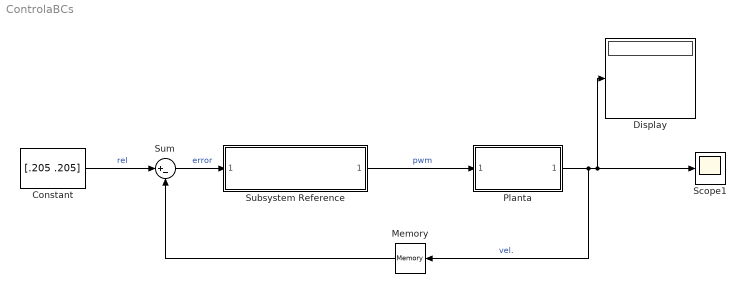
/*
 * Academic License - for use in teaching, academic research, and meeting
 * course requirements at degree granting institutions only.  Not for
 * government, commercial, or other organizational use.
 *
 * File: ControlaBCs.c
 *
 * Code generated for Simulink model 'ControlaBCs'.
 *
 * Model version                  : 1.1
 * Simulink Coder version         : 23.2 (R2023b) 01-Aug-2023
 * C/C++ source code generated on : Sun Dec 17 23:20:50 2023
 *
 * Target selection: ert.tlc
 * Embedded hardware selection: Atmel->AVR
 * Code generation objectives: Unspecified
 * Validation result: Not run
 */

#include "ControlaBCs.h"
#include <math.h>
#include "rt_nonfinite.h"
#include "rtwtypes.h"
#include "ControlaBCs_private.h"

/* Block signals (default storage) */
B_ControlaBCs_T ControlaBCs_B;

/* Continuous states */
X_ControlaBCs_T ControlaBCs_X;

/* Disabled State Vector */
XDis_ControlaBCs_T ControlaBCs_XDis;

/* Block states (default storage) */
DW_ControlaBCs_T ControlaBCs_DW;

/* Real-time model */
static RT_MODEL_ControlaBCs_T ControlaBCs_M_;
RT_MODEL_ControlaBCs_T *const ControlaBCs_M = &ControlaBCs_M_;

/*
 * This function updates continuous states using the ODE3 fixed-step
 * solver algorithm
 */
static void rt_ertODEUpdateContinuousStates(RTWSolverInfo *si )
{
  /* Solver Matrices */
  static const real_T rt_ODE3_A[3] = {
    1.0/2.0, 3.0/4.0, 1.0
  };

  static const real_T rt_ODE3_B[3][3] = {
    { 1.0/2.0, 0.0, 0.0 },

    { 0.0, 3.0/4.0, 0.0 },

    { 2.0/9.0, 1.0/3.0, 4.0/9.0 }
  };

  time_T t = rtsiGetT(si);
  time_T tnew = rtsiGetSolverStopTime(si);
  time_T h = rtsiGetStepSize(si);
  real_T *x = rtsiGetContStates(si);
  ODE3_IntgData *id = (ODE3_IntgData *)rtsiGetSolverData(si);
  real_T *y = id->y;
  real_T *f0 = id->f[0];
  real_T *f1 = id->f[1];
  real_T *f2 = id->f[2];
  real_T hB[3];
  int_T i;
  int_T nXc = 2;
  rtsiSetSimTimeStep(si,MINOR_TIME_STEP);

  /* Save the state values at time t in y, we'll use x as ynew. */
  (void) memcpy(y, x,
                (uint_T)nXc*sizeof(real_T));

  /* Assumes that rtsiSetT and ModelOutputs are up-to-date */
  /* f0 = f(t,y) */
  rtsiSetdX(si, f0);
  ControlaBCs_derivatives();

  /* f(:,2) = feval(odefile, t + hA(1), y + f*hB(:,1), args(:)(*)); */
  hB[0] = h * rt_ODE3_B[0][0];
  for (i = 0; i < nXc; i++) {
    x[i] = y[i] + (f0[i]*hB[0]);
  }

  rtsiSetT(si, t + h*rt_ODE3_A[0]);
  rtsiSetdX(si, f1);
  ControlaBCs_step();
  ControlaBCs_derivatives();

  /* f(:,3) = feval(odefile, t + hA(2), y + f*hB(:,2), args(:)(*)); */
  for (i = 0; i <= 1; i++) {
    hB[i] = h * rt_ODE3_B[1][i];
  }

  for (i = 0; i < nXc; i++) {
    x[i] = y[i] + (f0[i]*hB[0] + f1[i]*hB[1]);
  }

  rtsiSetT(si, t + h*rt_ODE3_A[1]);
  rtsiSetdX(si, f2);
  ControlaBCs_step();
  ControlaBCs_derivatives();

  /* tnew = t + hA(3);
     ynew = y + f*hB(:,3); */
  for (i = 0; i <= 2; i++) {
    hB[i] = h * rt_ODE3_B[2][i];
  }

  for (i = 0; i < nXc; i++) {
    x[i] = y[i] + (f0[i]*hB[0] + f1[i]*hB[1] + f2[i]*hB[2]);
  }

  rtsiSetT(si, tnew);
  rtsiSetSimTimeStep(si,MAJOR_TIME_STEP);
}

/* Model step function */
void ControlaBCs_step(void)
{
  if (rtmIsMajorTimeStep(ControlaBCs_M)) {
    /* set solver stop time */
    rtsiSetSolverStopTime(&ControlaBCs_M->solverInfo,
                          ((ControlaBCs_M->Timing.clockTick0+1)*
      ControlaBCs_M->Timing.stepSize0));
  }                                    /* end MajorTimeStep */

  /* Update absolute time of base rate at minor time step */
  if (rtmIsMinorTimeStep(ControlaBCs_M)) {
    ControlaBCs_M->Timing.t[0] = rtsiGetT(&ControlaBCs_M->solverInfo);
  }

  {
    real_T (*lastU)[2];
    real_T Gain_tmp;
    real_T lastTime;
    real_T rtb_error_idx_0;
    real_T rtb_error_idx_1;
    int16_T rtb_DataTypeConversion_idx_0;
    int16_T rtb_DataTypeConversion_idx_1;
    int16_T y;

    /* MATLABSystem: '<S4>/Encoder' */
    if (ControlaBCs_DW.obj_e.SampleTime != ControlaBCs_P.Encoder_SampleTime) {
      ControlaBCs_DW.obj_e.SampleTime = ControlaBCs_P.Encoder_SampleTime;
    }

    if (ControlaBCs_DW.obj_e.TunablePropsChanged) {
      ControlaBCs_DW.obj_e.TunablePropsChanged = false;
    }

    /* MATLABSystem: '<S4>/Encoder' */
    MW_EncoderRead(ControlaBCs_DW.obj_e.Index, &ControlaBCs_B.Encoder);

    /* MATLABSystem: '<S4>/Encoder1' */
    if (ControlaBCs_DW.obj.SampleTime != ControlaBCs_P.Encoder1_SampleTime) {
      ControlaBCs_DW.obj.SampleTime = ControlaBCs_P.Encoder1_SampleTime;
    }

    if (ControlaBCs_DW.obj.TunablePropsChanged) {
      ControlaBCs_DW.obj.TunablePropsChanged = false;
    }

    /* MATLABSystem: '<S4>/Encoder1' */
    MW_EncoderRead(ControlaBCs_DW.obj.Index, &ControlaBCs_B.Encoder1);

    /* Gain: '<S4>/Gain' */
    Gain_tmp = (real_T)ControlaBCs_P.Gain_Gain * 1.1368683772161603E-13;

    /* Gain: '<S4>/Gain' incorporates:
     *  SignalConversion generated from: '<S4>/Gain'
     */
    ControlaBCs_B.Gain[0] = Gain_tmp * (real_T)ControlaBCs_B.Encoder;
    ControlaBCs_B.Gain[1] = Gain_tmp * (real_T)ControlaBCs_B.Encoder1;
    if (rtmIsMajorTimeStep(ControlaBCs_M)) {
    }

    /* Derivative: '<S4>/Derivative' */
    Gain_tmp = ControlaBCs_M->Timing.t[0];
    if ((ControlaBCs_DW.TimeStampA >= Gain_tmp) && (ControlaBCs_DW.TimeStampB >=
         Gain_tmp)) {
      /* Derivative: '<S4>/Derivative' */
      ControlaBCs_B.Derivative[0] = 0.0;
      ControlaBCs_B.Derivative[1] = 0.0;
    } else {
      lastTime = ControlaBCs_DW.TimeStampA;
      lastU = &ControlaBCs_DW.LastUAtTimeA;
      if (ControlaBCs_DW.TimeStampA < ControlaBCs_DW.TimeStampB) {
        if (ControlaBCs_DW.TimeStampB < Gain_tmp) {
          lastTime = ControlaBCs_DW.TimeStampB;
          lastU = &ControlaBCs_DW.LastUAtTimeB;
        }
      } else if (ControlaBCs_DW.TimeStampA >= Gain_tmp) {
        lastTime = ControlaBCs_DW.TimeStampB;
        lastU = &ControlaBCs_DW.LastUAtTimeB;
      }

      Gain_tmp -= lastTime;

      /* Derivative: '<S4>/Derivative' */
      ControlaBCs_B.Derivative[0] = (ControlaBCs_B.Gain[0] - (*lastU)[0]) /
        Gain_tmp;
      ControlaBCs_B.Derivative[1] = (ControlaBCs_B.Gain[1] - (*lastU)[1]) /
        Gain_tmp;
    }

    /* End of Derivative: '<S4>/Derivative' */
    if (rtmIsMajorTimeStep(ControlaBCs_M)) {
      /* SignalConversion generated from: '<S4>/Mux' */
      ControlaBCs_B.TmpSignalConversionAtTAQSigLogg[0] = ControlaBCs_B.Encoder;
      ControlaBCs_B.TmpSignalConversionAtTAQSigLogg[1] = ControlaBCs_B.Encoder1;

      /* Sum: '<Root>/Sum' incorporates:
       *  Constant: '<Root>/Constant'
       *  Memory: '<Root>/Memory'
       */
      rtb_error_idx_0 = ControlaBCs_P.Constant_Value[0] -
        ControlaBCs_DW.Memory_PreviousInput[0];
      rtb_error_idx_1 = ControlaBCs_P.Constant_Value[1] -
        ControlaBCs_DW.Memory_PreviousInput[1];

      /* Gain: '<S94>/Proportional Gain' */
      ControlaBCs_B.ProportionalGain = ControlaBCs_P.PIDController2_P *
        rtb_error_idx_0;

      /* Gain: '<S46>/Proportional Gain' */
      ControlaBCs_B.ProportionalGain_p = ControlaBCs_P.PIDController1_P *
        rtb_error_idx_1;
    }

    /* Sum: '<S98>/Sum' incorporates:
     *  Integrator: '<S89>/Integrator'
     */
    Gain_tmp = ControlaBCs_B.ProportionalGain + ControlaBCs_X.Integrator_CSTATE;

    /* Saturate: '<S96>/Saturation' */
    if (Gain_tmp > ControlaBCs_P.PIDController2_UpperSaturationL) {
      Gain_tmp = ControlaBCs_P.PIDController2_UpperSaturationL;
    } else if (Gain_tmp < ControlaBCs_P.PIDController2_LowerSaturationL) {
      Gain_tmp = ControlaBCs_P.PIDController2_LowerSaturationL;
    }

    /* DataTypeConversion: '<S1>/Data Type Conversion' incorporates:
     *  Saturate: '<S96>/Saturation'
     */
    Gain_tmp = floor(Gain_tmp);
    if (rtIsNaN(Gain_tmp) || rtIsInf(Gain_tmp)) {
      Gain_tmp = 0.0;
    } else {
      Gain_tmp = fmod(Gain_tmp, 65536.0);
    }

    rtb_DataTypeConversion_idx_0 = Gain_tmp < 0.0 ? -(int16_T)(uint16_T)
      -Gain_tmp : (int16_T)(uint16_T)Gain_tmp;

    /* Sum: '<S50>/Sum' incorporates:
     *  Integrator: '<S41>/Integrator'
     */
    Gain_tmp = ControlaBCs_B.ProportionalGain_p +
      ControlaBCs_X.Integrator_CSTATE_c;

    /* Saturate: '<S48>/Saturation' */
    if (Gain_tmp > ControlaBCs_P.PIDController1_UpperSaturationL) {
      Gain_tmp = ControlaBCs_P.PIDController1_UpperSaturationL;
    } else if (Gain_tmp < ControlaBCs_P.PIDController1_LowerSaturationL) {
      Gain_tmp = ControlaBCs_P.PIDController1_LowerSaturationL;
    }

    /* DataTypeConversion: '<S1>/Data Type Conversion' incorporates:
     *  Saturate: '<S48>/Saturation'
     */
    Gain_tmp = floor(Gain_tmp);
    if (rtIsNaN(Gain_tmp) || rtIsInf(Gain_tmp)) {
      Gain_tmp = 0.0;
    } else {
      Gain_tmp = fmod(Gain_tmp, 65536.0);
    }

    rtb_DataTypeConversion_idx_1 = Gain_tmp < 0.0 ? -(int16_T)(uint16_T)
      -Gain_tmp : (int16_T)(uint16_T)Gain_tmp;

    /* MATLABSystem: '<S5>/Adelante_der' */
    ControlaBCs_DW.obj_k.PWMDriverObj.MW_PWM_HANDLE = MW_PWM_GetHandle(12UL);

    /* Saturate: '<S5>/Saturation2' */
    if (rtb_DataTypeConversion_idx_1 > ControlaBCs_P.Saturation2_UpperSat) {
      y = ControlaBCs_P.Saturation2_UpperSat;
    } else if (rtb_DataTypeConversion_idx_1 < ControlaBCs_P.Saturation2_LowerSat)
    {
      y = ControlaBCs_P.Saturation2_LowerSat;
    } else {
      y = rtb_DataTypeConversion_idx_1;
    }

    /* End of Saturate: '<S5>/Saturation2' */

    /* Start for MATLABSystem: '<S5>/Adelante_der' */
    if (y > 255) {
      y = 255;
    }

    if (y < 0) {
      y = 0;
    }

    /* MATLABSystem: '<S5>/Adelante_der' */
    MW_PWM_SetDutyCycle(ControlaBCs_DW.obj_k.PWMDriverObj.MW_PWM_HANDLE, (real_T)
                        y);

    /* MATLABSystem: '<S5>/Adelante_izq' */
    ControlaBCs_DW.obj_m.PWMDriverObj.MW_PWM_HANDLE = MW_PWM_GetHandle(9UL);

    /* Saturate: '<S5>/Saturation4' */
    if (rtb_DataTypeConversion_idx_0 > ControlaBCs_P.Saturation4_UpperSat) {
      y = ControlaBCs_P.Saturation4_UpperSat;
    } else if (rtb_DataTypeConversion_idx_0 < ControlaBCs_P.Saturation4_LowerSat)
    {
      y = ControlaBCs_P.Saturation4_LowerSat;
    } else {
      y = rtb_DataTypeConversion_idx_0;
    }

    /* End of Saturate: '<S5>/Saturation4' */

    /* Abs: '<S5>/Abs2' */
    if (y < 0) {
      y = -y;
    }

    /* End of Abs: '<S5>/Abs2' */

    /* Start for MATLABSystem: '<S5>/Adelante_izq' */
    if (y > 255) {
      y = 255;
    }

    if (y < 0) {
      y = 0;
    }

    /* MATLABSystem: '<S5>/Adelante_izq' */
    MW_PWM_SetDutyCycle(ControlaBCs_DW.obj_m.PWMDriverObj.MW_PWM_HANDLE, (real_T)
                        y);

    /* MATLABSystem: '<S5>/Atras_der' */
    ControlaBCs_DW.obj_e5.PWMDriverObj.MW_PWM_HANDLE = MW_PWM_GetHandle(11UL);

    /* Saturate: '<S5>/Saturation3' */
    if (rtb_DataTypeConversion_idx_1 > ControlaBCs_P.Saturation3_UpperSat) {
      y = ControlaBCs_P.Saturation3_UpperSat;
    } else if (rtb_DataTypeConversion_idx_1 < ControlaBCs_P.Saturation3_LowerSat)
    {
      y = ControlaBCs_P.Saturation3_LowerSat;
    } else {
      y = rtb_DataTypeConversion_idx_1;
    }

    /* End of Saturate: '<S5>/Saturation3' */

    /* Abs: '<S5>/Abs1' */
    if (y < 0) {
      y = -y;
    }

    /* End of Abs: '<S5>/Abs1' */

    /* Start for MATLABSystem: '<S5>/Atras_der' */
    if (y > 255) {
      y = 255;
    }

    if (y < 0) {
      y = 0;
    }

    /* MATLABSystem: '<S5>/Atras_der' */
    MW_PWM_SetDutyCycle(ControlaBCs_DW.obj_e5.PWMDriverObj.MW_PWM_HANDLE,
                        (real_T)y);

    /* MATLABSystem: '<S5>/Atras_izq' */
    ControlaBCs_DW.obj_d.PWMDriverObj.MW_PWM_HANDLE = MW_PWM_GetHandle(10UL);

    /* Saturate: '<S5>/Saturation5' */
    if (rtb_DataTypeConversion_idx_0 > ControlaBCs_P.Saturation5_UpperSat) {
      y = ControlaBCs_P.Saturation5_UpperSat;
    } else if (rtb_DataTypeConversion_idx_0 < ControlaBCs_P.Saturation5_LowerSat)
    {
      y = ControlaBCs_P.Saturation5_LowerSat;
    } else {
      y = rtb_DataTypeConversion_idx_0;
    }

    /* End of Saturate: '<S5>/Saturation5' */

    /* Start for MATLABSystem: '<S5>/Atras_izq' */
    if (y > 255) {
      y = 255;
    }

    if (y < 0) {
      y = 0;
    }

    /* MATLABSystem: '<S5>/Atras_izq' */
    MW_PWM_SetDutyCycle(ControlaBCs_DW.obj_d.PWMDriverObj.MW_PWM_HANDLE, (real_T)
                        y);

    /* MATLABSystem: '<S5>/Digital Output' incorporates:
     *  Constant: '<S6>/Constant'
     *  RelationalOperator: '<S6>/Compare'
     */
    writeDigitalPin(8, (uint8_T)(rtb_DataTypeConversion_idx_0 !=
      ControlaBCs_P.Constant_Value_h));

    /* MATLABSystem: '<S5>/Digital Output1' incorporates:
     *  Constant: '<S7>/Constant'
     *  RelationalOperator: '<S7>/Compare'
     */
    writeDigitalPin(13, (uint8_T)(rtb_DataTypeConversion_idx_1 !=
      ControlaBCs_P.Constant_Value_g));
    if (rtmIsMajorTimeStep(ControlaBCs_M)) {
      /* Gain: '<S38>/Integral Gain' */
      ControlaBCs_B.IntegralGain = ControlaBCs_P.PIDController1_I *
        rtb_error_idx_1;

      /* Gain: '<S86>/Integral Gain' */
      ControlaBCs_B.IntegralGain_e = ControlaBCs_P.PIDController2_I *
        rtb_error_idx_0;
    }
  }

  if (rtmIsMajorTimeStep(ControlaBCs_M)) {
    real_T (*lastU)[2];

    /* Update for Derivative: '<S4>/Derivative' */
    if (ControlaBCs_DW.TimeStampA == (rtInf)) {
      ControlaBCs_DW.TimeStampA = ControlaBCs_M->Timing.t[0];
      lastU = &ControlaBCs_DW.LastUAtTimeA;
    } else if (ControlaBCs_DW.TimeStampB == (rtInf)) {
      ControlaBCs_DW.TimeStampB = ControlaBCs_M->Timing.t[0];
      lastU = &ControlaBCs_DW.LastUAtTimeB;
    } else if (ControlaBCs_DW.TimeStampA < ControlaBCs_DW.TimeStampB) {
      ControlaBCs_DW.TimeStampA = ControlaBCs_M->Timing.t[0];
      lastU = &ControlaBCs_DW.LastUAtTimeA;
    } else {
      ControlaBCs_DW.TimeStampB = ControlaBCs_M->Timing.t[0];
      lastU = &ControlaBCs_DW.LastUAtTimeB;
    }

    (*lastU)[0] = ControlaBCs_B.Gain[0];
    (*lastU)[1] = ControlaBCs_B.Gain[1];

    /* End of Update for Derivative: '<S4>/Derivative' */
    if (rtmIsMajorTimeStep(ControlaBCs_M)) {
      /* Update for Memory: '<Root>/Memory' */
      ControlaBCs_DW.Memory_PreviousInput[0] = ControlaBCs_B.Derivative[0];
      ControlaBCs_DW.Memory_PreviousInput[1] = ControlaBCs_B.Derivative[1];
    }

    {                                  /* Sample time: [0.0s, 0.0s] */
      extmodeErrorCode_T errorCode = EXTMODE_SUCCESS;
      extmodeSimulationTime_T currentTime = (extmodeSimulationTime_T)
        ((ControlaBCs_M->Timing.clockTick0 * 1) + 0)
        ;

      /* Trigger External Mode event */
      errorCode = extmodeEvent(0,currentTime);
      if (errorCode != EXTMODE_SUCCESS) {
        /* Code to handle External Mode event errors
           may be added here */
      }
    }

    if (rtmIsMajorTimeStep(ControlaBCs_M)) {/* Sample time: [0.01s, 0.0s] */
      extmodeErrorCode_T errorCode = EXTMODE_SUCCESS;
      extmodeSimulationTime_T currentTime = (extmodeSimulationTime_T)
        ((ControlaBCs_M->Timing.clockTick1 * 1) + 0)
        ;

      /* Trigger External Mode event */
      errorCode = extmodeEvent(1,currentTime);
      if (errorCode != EXTMODE_SUCCESS) {
        /* Code to handle External Mode event errors
           may be added here */
      }
    }
  }                                    /* end MajorTimeStep */

  if (rtmIsMajorTimeStep(ControlaBCs_M)) {
    rt_ertODEUpdateContinuousStates(&ControlaBCs_M->solverInfo);

    /* Update absolute time for base rate */
    /* The "clockTick0" counts the number of times the code of this task has
     * been executed. The absolute time is the multiplication of "clockTick0"
     * and "Timing.stepSize0". Size of "clockTick0" ensures timer will not
     * overflow during the application lifespan selected.
     */
    ++ControlaBCs_M->Timing.clockTick0;
    ControlaBCs_M->Timing.t[0] = rtsiGetSolverStopTime
      (&ControlaBCs_M->solverInfo);

    {
      /* Update absolute timer for sample time: [0.01s, 0.0s] */
      /* The "clockTick1" counts the number of times the code of this task has
       * been executed. The resolution of this integer timer is 0.01, which is the step size
       * of the task. Size of "clockTick1" ensures timer will not overflow during the
       * application lifespan selected.
       */
      ControlaBCs_M->Timing.clockTick1++;
    }
  }                                    /* end MajorTimeStep */
}
